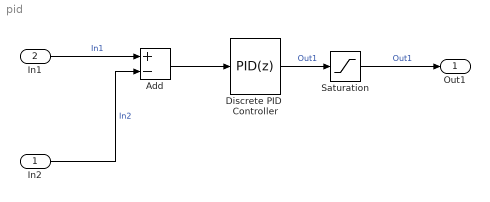
/*
 * File: pid.c
 *
 * Real-Time Workshop code generated for Simulink model pid.
 *
 * Model version                        : 1.33
 * Real-Time Workshop file version      : 7.4  (R2009b)  29-Jun-2009
 * Real-Time Workshop file generated on : Thu Dec 17 22:31:43 2020
 * TLC version                          : 7.4 (Jul 14 2009)
 * C/C++ source code generated on       : Thu Dec 17 22:31:44 2020
 *
 * Target selection: ert.tlc
 * Embedded hardware selection: Generic->32-bit Embedded Processor
 * Code generation objectives: Unspecified
 * Validation result: Not run
 */

#include "pid.h"
#include "pid_private.h"

/* Exported block signals */
real_T In2;                            /* '<Root>/In2' */
real_T In1;                            /* '<Root>/In1' */
real_T Out1;                           /* '<Root>/Saturation' */

/* Block states (auto storage) */
D_Work_pid pid_DWork;

/* Real-time model */
RT_MODEL_pid pid_M_;
RT_MODEL_pid *pid_M = &pid_M_;

/* Model step function */
void pid_step(void)
{
  real_T rtb_Add;
  real_T rtb_Sum;
  real_T rtb_FilterCoefficient;

  /* Sum: '<Root>/Add' incorporates:
   *  Inport: '<Root>/In1'
   *  Inport: '<Root>/In2'
   */
  rtb_Add = In1 - In2;

  /* Gain: '<S1>/Filter Coefficient' incorporates:
   *  DiscreteIntegrator: '<S1>/Filter'
   *  Gain: '<S1>/Derivative Gain'
   *  Sum: '<S1>/SumD'
   */
  rtb_FilterCoefficient = (pid_P.DerivativeGain_Gain * rtb_Add -
    pid_DWork.Filter_DSTATE) * pid_P.FilterCoefficient_Gain;

  /* Sum: '<S1>/Sum' incorporates:
   *  DiscreteIntegrator: '<S1>/Integrator'
   *  Gain: '<S1>/Proportional Gain'
   */
  rtb_Sum = (pid_P.ProportionalGain_Gain * rtb_Add + pid_DWork.Integrator_DSTATE)
    + rtb_FilterCoefficient;

  /* Saturate: '<Root>/Saturation' */
  Out1 = rt_SATURATE(rtb_Sum, pid_P.Saturation_LowerSat,
                     pid_P.Saturation_UpperSat);

  /* Update for DiscreteIntegrator: '<S1>/Integrator' incorporates:
   *  Gain: '<S1>/Integral Gain'
   */
  pid_DWork.Integrator_DSTATE = pid_P.IntegralGain_Gain * rtb_Add *
    pid_P.Integrator_gainval + pid_DWork.Integrator_DSTATE;

  /* Update for DiscreteIntegrator: '<S1>/Filter' */
  pid_DWork.Filter_DSTATE = pid_P.Filter_gainval * rtb_FilterCoefficient +
    pid_DWork.Filter_DSTATE;
}
